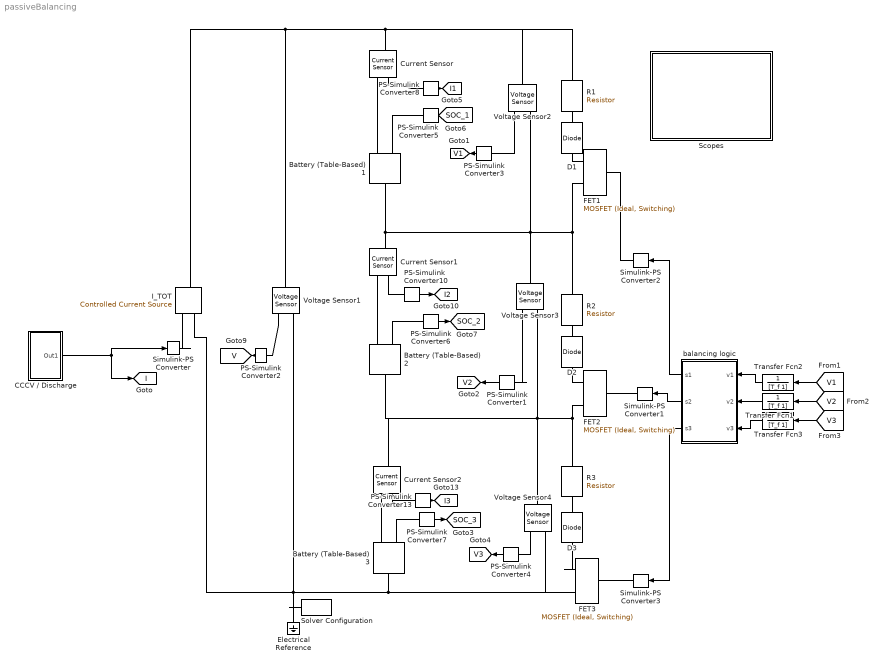
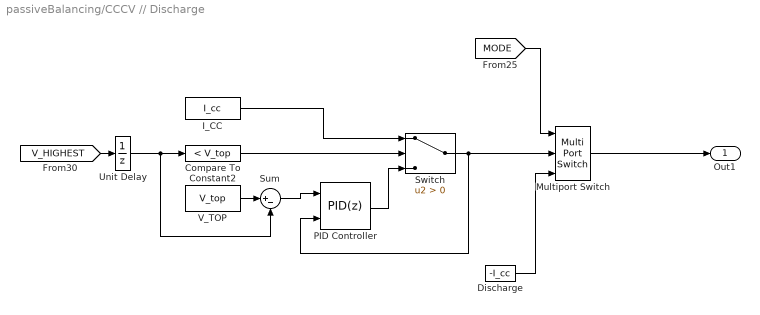
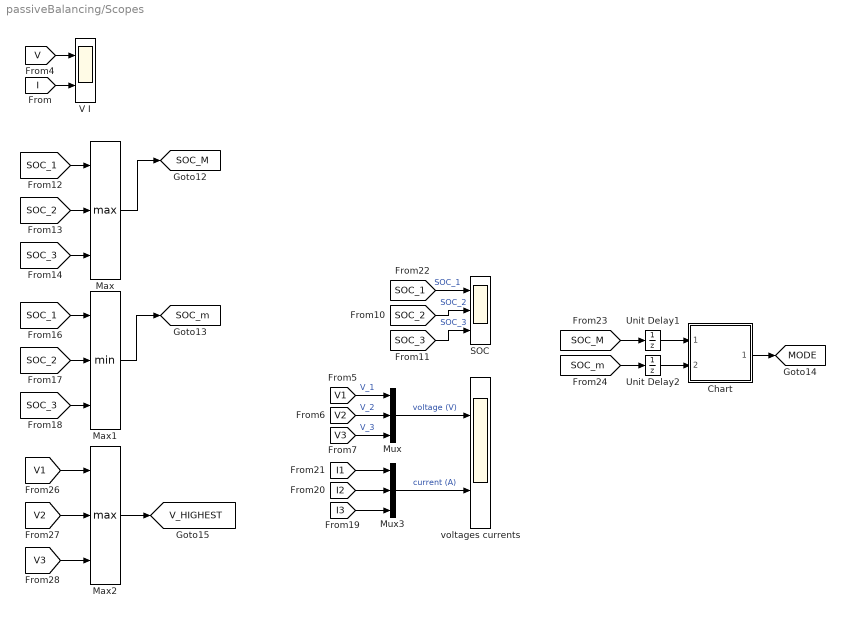
== stateflow chart passiveBalancing/balancing
logic ==
  state finish
    entry: s1 = 0;
    s2 = 0;
    s3 = 0;
  state init
    entry: s1 = 0;
    s2 = 0;
    s3 = 0;
  state balancing
    during: lowest = lowestCell(v1,v2,v3);
    state cell3_low
      entry: s1 = 1;
      s2 = 1;
      s3 = 0;
      exit: s1 = 0;
      s2 = 0;
      s3 = 0;
    state cell2_low
      entry: s1 = 1;
      s3 = 1;
      s2 = 0;
      exit: s1 = 0;
      s3 = 0;
      s2 = 0;
    state cell1_low
      entry: s2 = 1;
      s3 = 1;
      s1 = 0;
      exit: s1 = 0;
      s3 = 0;
      s2 = 0;
    (default) -> (junction 382) : {lowest = lowestCell(v1,v2,v3);}
    (junction 382) -> cell3_low [order 1] : [lowest==3]
    (junction 382) -> cell1_low [order 2] : [lowest==1]
    (junction 382) -> cell2_low [order 3] : [lowest==2]
    cell2_low -> cell1_low [order 2] : [lowest==1]
    cell3_low -> cell2_low [order 1] : [lowest==2]
    cell2_low -> cell3_low [order 1] : [lowest==3]
    cell1_low -> cell2_low [order 1] : [lowest==2]
    cell3_low -> cell1_low [order 2] : [lowest==1]
    cell1_low -> cell3_low [order 2] : [lowest==3]
  (default) -> init
  finish -> balancing : [abs(max([v1 v2 v3]) - min([v1 v2 v3])) > dV && after(1,sec)]
  balancing -> finish : [abs(max([v1 v2 v3]) - min([v1 v2 v3])) < dV]
  init -> balancing : [abs(max([v1 v2 v3]) - min([v1 v2 v3])) > dV]
  data: a function_input; b function_input; c function_input; lowidx function_output; v1 input; v2 input; v3 input; s1 output; s2 output; s3 output; dV parameter; lowest local
  function lowidx = lowestCell(a,b,c):
    | function lowidx = lowestCell(a,b,c)
    | [~,k] = sort([a,b,c],'ascend');
    | lowidx = k(1);

== stateflow chart passiveBalancing/Scopes/Chart ==
  state wait
  state DISCHARGE
    during: MODE = 2;
  state CHARGE
    during: MODE = 1;
  (default) -> wait
  wait -> (junction 14)
  (junction 14) -> (junction 16) [order 1] : [SOC_MAX<0.5]
  (junction 14) -> DISCHARGE [order 2] : [SOC_MAX>=0.5]
  (junction 16) -> (junction 19)
  CHARGE -> DISCHARGE : [SOC_MAX > 0.99 || after(5000,sec)]
  DISCHARGE -> CHARGE : [SOC_min < 0.3]
  (junction 19) -> CHARGE
  data: MODE output; SOC_MAX input; SOC_min input

/*
 * Academic License - for use in teaching, academic research, and meeting
 * course requirements at degree granting institutions only.  Not for
 * government, commercial, or other organizational use.
 *
 * File: passiveBalancing.c
 *
 * Code generated for Simulink model 'passiveBalancing'.
 *
 * Model version                  : 3.19
 * Simulink Coder version         : 9.4 (R2020b) 29-Jul-2020
 * C/C++ source code generated on : Mon Jan  4 22:03:15 2021
 *
 * Target selection: ert.tlc
 * Embedded hardware selection: ARM Compatible->ARM Cortex-M
 * Emulation hardware selection:
 *    Differs from embedded hardware (MATLAB Host)
 * Code generation objectives: Unspecified
 * Validation result: Not run
 */

#include "passiveBalancing.h"
#include "passiveBalancing_private.h"

/* Named constants for Chart: '<S12>/Chart' */
#define passiveBalan_IN_NO_ACTIVE_CHILD ((uint8_T)0U)
#define passiveBalancing_IN_CHARGE     ((uint8_T)1U)
#define passiveBalancing_IN_DISCHARGE  ((uint8_T)2U)
#define passiveBalancing_IN_wait       ((uint8_T)3U)

/* Named constants for Chart: '<Root>/balancing logic' */
#define passiveBalancing_IN_balancing  ((uint8_T)1U)
#define passiveBalancing_IN_cell1_low  ((uint8_T)1U)
#define passiveBalancing_IN_cell2_low  ((uint8_T)2U)
#define passiveBalancing_IN_cell3_low  ((uint8_T)3U)
#define passiveBalancing_IN_finish     ((uint8_T)2U)
#define passiveBalancing_IN_init       ((uint8_T)3U)

/* Block signals (default storage) */
B_passiveBalancing_T passiveBalancing_B;

/* Continuous states */
X_passiveBalancing_T passiveBalancing_X;

/* Block states (default storage) */
DW_passiveBalancing_T passiveBalancing_DW;

/* Real-time model */
static RT_MODEL_passiveBalancing_T passiveBalancing_M_;
RT_MODEL_passiveBalancing_T *const passiveBalancing_M = &passiveBalancing_M_;

/* Forward declaration for local functions */
static real_T passiveBalancing_maximum(const real_T x[3]);
static real_T passiveBalancing_minimum(const real_T x[3]);
static void passiveBalancing_sort(real_T x[3], int32_T idx[3]);
static real_T passiveBalancing_lowestCell(real_T a, real_T b, real_T c);
static void passiv_enter_internal_balancing(const real_T *TransferFcn3, const
  real_T *TransferFcn1, const real_T *TransferFcn2);

/*
 * This function updates continuous states using the ODE3 fixed-step
 * solver algorithm
 */
static void rt_ertODEUpdateContinuousStates(RTWSolverInfo *si )
{
  /* Solver Matrices */
  static const real_T rt_ODE3_A[3] = {
    1.0/2.0, 3.0/4.0, 1.0
  };

  static const real_T rt_ODE3_B[3][3] = {
    { 1.0/2.0, 0.0, 0.0 },

    { 0.0, 3.0/4.0, 0.0 },

    { 2.0/9.0, 1.0/3.0, 4.0/9.0 }
  };

  time_T t = rtsiGetT(si);
  time_T tnew = rtsiGetSolverStopTime(si);
  time_T h = rtsiGetStepSize(si);
  real_T *x = rtsiGetContStates(si);
  ODE3_IntgData *id = (ODE3_IntgData *)rtsiGetSolverData(si);
  real_T *y = id->y;
  real_T *f0 = id->f[0];
  real_T *f1 = id->f[1];
  real_T *f2 = id->f[2];
  real_T hB[3];
  int_T i;
  int_T nXc = 3;
  rtsiSetSimTimeStep(si,MINOR_TIME_STEP);

  /* Save the state values at time t in y, we'll use x as ynew. */
  (void) memcpy(y, x,
                (uint_T)nXc*sizeof(real_T));

  /* Assumes that rtsiSetT and ModelOutputs are up-to-date */
  /* f0 = f(t,y) */
  rtsiSetdX(si, f0);
  passiveBalancing_derivatives();

  /* f(:,2) = feval(odefile, t + hA(1), y + f*hB(:,1), args(:)(*)); */
  hB[0] = h * rt_ODE3_B[0][0];
  for (i = 0; i < nXc; i++) {
    x[i] = y[i] + (f0[i]*hB[0]);
  }

  rtsiSetT(si, t + h*rt_ODE3_A[0]);
  rtsiSetdX(si, f1);
  passiveBalancing_step();
  passiveBalancing_derivatives();

  /* f(:,3) = feval(odefile, t + hA(2), y + f*hB(:,2), args(:)(*)); */
  for (i = 0; i <= 1; i++) {
    hB[i] = h * rt_ODE3_B[1][i];
  }

  for (i = 0; i < nXc; i++) {
    x[i] = y[i] + (f0[i]*hB[0] + f1[i]*hB[1]);
  }

  rtsiSetT(si, t + h*rt_ODE3_A[1]);
  rtsiSetdX(si, f2);
  passiveBalancing_step();
  passiveBalancing_derivatives();

  /* tnew = t + hA(3);
     ynew = y + f*hB(:,3); */
  for (i = 0; i <= 2; i++) {
    hB[i] = h * rt_ODE3_B[2][i];
  }

  for (i = 0; i < nXc; i++) {
    x[i] = y[i] + (f0[i]*hB[0] + f1[i]*hB[1] + f2[i]*hB[2]);
  }

  rtsiSetT(si, tnew);
  rtsiSetSimTimeStep(si,MAJOR_TIME_STEP);
}

/* Function for Chart: '<Root>/balancing logic' */
static real_T passiveBalancing_maximum(const real_T x[3])
{
  real_T ex;
  int32_T idx;
  int32_T k;
  boolean_T exitg1;
  if (!rtIsNaN(x[0])) {
    idx = 1;
  } else {
    idx = 0;
    k = 2;
    exitg1 = false;
    while ((!exitg1) && (k < 4)) {
      if (!rtIsNaN(x[k - 1])) {
        idx = k;
        exitg1 = true;
      } else {
        k++;
      }
    }
  }

  if (idx == 0) {
    ex = x[0];
  } else {
    ex = x[idx - 1];
    while (idx + 1 <= 3) {
      if (ex < x[idx]) {
        ex = x[idx];
      }

      idx++;
    }
  }

  return ex;
}

/* Function for Chart: '<Root>/balancing logic' */
static real_T passiveBalancing_minimum(const real_T x[3])
{
  real_T ex;
  int32_T idx;
  int32_T k;
  boolean_T exitg1;
  if (!rtIsNaN(x[0])) {
    idx = 1;
  } else {
    idx = 0;
    k = 2;
    exitg1 = false;
    while ((!exitg1) && (k < 4)) {
      if (!rtIsNaN(x[k - 1])) {
        idx = k;
        exitg1 = true;
      } else {
        k++;
      }
    }
  }

  if (idx == 0) {
    ex = x[0];
  } else {
    ex = x[idx - 1];
    while (idx + 1 <= 3) {
      if (ex > x[idx]) {
        ex = x[idx];
      }

      idx++;
    }
  }

  return ex;
}

/* Function for Chart: '<Root>/balancing logic' */
static void passiveBalancing_sort(real_T x[3], int32_T idx[3])
{
  real_T b_x_idx_0;
  real_T b_x_idx_1;
  real_T b_x_idx_2;
  b_x_idx_0 = x[0];
  b_x_idx_1 = x[1];
  b_x_idx_2 = x[2];
  if ((x[0] <= x[1]) || rtIsNaN(x[1])) {
    if ((x[1] <= x[2]) || rtIsNaN(x[2])) {
      idx[0] = 1;
      idx[1] = 2;
      idx[2] = 3;
    } else if (x[0] <= x[2]) {
      idx[0] = 1;
      idx[1] = 3;
      idx[2] = 2;
      b_x_idx_1 = x[2];
      b_x_idx_2 = x[1];
    } else {
      idx[0] = 3;
      idx[1] = 1;
      idx[2] = 2;
      b_x_idx_2 = x[1];
      b_x_idx_1 = x[0];
      b_x_idx_0 = x[2];
    }
  } else if ((x[0] <= x[2]) || rtIsNaN(x[2])) {
    idx[0] = 2;
    idx[1] = 1;
    idx[2] = 3;
    b_x_idx_0 = x[1];
    b_x_idx_1 = x[0];
  } else if (x[1] <= x[2]) {
    idx[0] = 2;
    idx[1] = 3;
    idx[2] = 1;
    b_x_idx_0 = x[1];
    b_x_idx_1 = x[2];
    b_x_idx_2 = x[0];
  } else {
    idx[0] = 3;
    idx[1] = 2;
    idx[2] = 1;
    b_x_idx_0 = x[2];
    b_x_idx_2 = x[0];
  }

  x[0] = b_x_idx_0;
  x[1] = b_x_idx_1;
  x[2] = b_x_idx_2;
}

/* Function for Chart: '<Root>/balancing logic' */
static real_T passiveBalancing_lowestCell(real_T a, real_T b, real_T c)
{
  real_T x[3];
  int32_T iidx[3];
  x[0] = a;
  x[1] = b;
  x[2] = c;
  passiveBalancing_sort(x, iidx);
  return iidx[0];
}

/* Function for Chart: '<Root>/balancing logic' */
static void passiv_enter_internal_balancing(const real_T *TransferFcn3, const
  real_T *TransferFcn1, const real_T *TransferFcn2)
{
  real_T lowest;
  lowest = passiveBalancing_lowestCell(*TransferFcn2, *TransferFcn1,
    *TransferFcn3);
  if (lowest == 3.0) {
    passiveBalancing_DW.is_balancing = passiveBalancing_IN_cell3_low;
    passiveBalancing_B.s1 = 1.0;
    passiveBalancing_B.s2 = 1.0;
    passiveBalancing_B.s3 = 0.0;
  } else if (lowest == 1.0) {
    passiveBalancing_DW.is_balancing = passiveBalancing_IN_cell1_low;
    passiveBalancing_B.s2 = 1.0;
    passiveBalancing_B.s3 = 1.0;
    passiveBalancing_B.s1 = 0.0;
  } else {
    if (lowest == 2.0) {
      passiveBalancing_DW.is_balancing = passiveBalancing_IN_cell2_low;
      passiveBalancing_B.s1 = 1.0;
      passiveBalancing_B.s3 = 1.0;
      passiveBalancing_B.s2 = 0.0;
    }
  }
}

/* Model step function */
void passiveBalancing_step(void)
{
  /* local block i/o variables */
  real_T rtb_FilterCoefficient;
  real_T rtb_Switch_m;
  if (rtmIsMajorTimeStep(passiveBalancing_M)) {
    /* set solver stop time */
    rtsiSetSolverStopTime(&passiveBalancing_M->solverInfo,
                          ((passiveBalancing_M->Timing.clockTick0+1)*
      passiveBalancing_M->Timing.stepSize0));
  }                                    /* end MajorTimeStep */

  /* Update absolute time of base rate at minor time step */
  if (rtmIsMinorTimeStep(passiveBalancing_M)) {
    passiveBalancing_M->Timing.t[0] = rtsiGetT(&passiveBalancing_M->solverInfo);
  }

  {
    NeslSimulationData *simulationData;
    NeuDiagnosticManager *diagnosticManager;
    NeuDiagnosticTree *diagnosticTree;
    char *msg;
    real_T tmp_3[124];
    real_T tmp_5[124];
    real_T tmp_0[16];
    real_T TransferFcn2_0[3];
    real_T TransferFcn2_1[3];
    real_T rtb_OUTPUT_1_1[3];
    real_T TransferFcn1;
    real_T TransferFcn2;
    real_T TransferFcn3;
    real_T rtb_DeadZone;
    real_T rtb_Sum;
    real_T rtb_SumI1;
    real_T rtb_Switch;
    real_T time;
    real_T time_0;
    real_T time_1;
    int32_T tmp_2;
    int_T tmp_4[6];
    int_T tmp_6[6];
    int_T tmp_1[5];
    boolean_T tmp;

    /* TransferFcn: '<Root>/Transfer Fcn1' */
    TransferFcn1 = 0.0016666666666666668 *
      passiveBalancing_X.TransferFcn1_CSTATE;

    /* TransferFcn: '<Root>/Transfer Fcn2' */
    TransferFcn2 = 0.0016666666666666668 *
      passiveBalancing_X.TransferFcn2_CSTATE;

    /* TransferFcn: '<Root>/Transfer Fcn3' */
    TransferFcn3 = 0.0016666666666666668 *
      passiveBalancing_X.TransferFcn3_CSTATE;
    if (rtmIsMajorTimeStep(passiveBalancing_M)) {
      /* Chart: '<S12>/Chart' incorporates:
       *  UnitDelay: '<S12>/Unit Delay1'
       *  UnitDelay: '<S12>/Unit Delay2'
       */
      if (passiveBalancing_DW.temporalCounter_i1 < 8191U) {
        passiveBalancing_DW.temporalCounter_i1++;
      }

      if (passiveBalancing_DW.is_active_c3_passiveBalancing == 0U) {
        passiveBalancing_DW.is_active_c3_passiveBalancing = 1U;
        passiveBalancing_DW.is_c3_passiveBalancing = passiveBalancing_IN_wait;
      } else {
        switch (passiveBalancing_DW.is_c3_passiveBalancing) {
         case passiveBalancing_IN_CHARGE:
          if ((passiveBalancing_DW.UnitDelay1_DSTATE > 0.99) ||
              (passiveBalancing_DW.temporalCounter_i1 >= 5000U)) {
            passiveBalancing_DW.is_c3_passiveBalancing =
              passiveBalancing_IN_DISCHARGE;
          } else {
            passiveBalancing_B.MODE = 1.0;
          }
          break;

         case passiveBalancing_IN_DISCHARGE:
          if (passiveBalancing_DW.UnitDelay2_DSTATE < 0.3) {
            passiveBalancing_DW.is_c3_passiveBalancing =
              passiveBalancing_IN_CHARGE;
            passiveBalancing_DW.temporalCounter_i1 = 0U;
          } else {
            passiveBalancing_B.MODE = 2.0;
          }
          break;

         default:
          /* case IN_wait: */
          if (passiveBalancing_DW.UnitDelay1_DSTATE < 0.5) {
            passiveBalancing_DW.is_c3_passiveBalancing =
              passiveBalancing_IN_CHARGE;
            passiveBalancing_DW.temporalCounter_i1 = 0U;
          } else {
            if (passiveBalancing_DW.UnitDelay1_DSTATE >= 0.5) {
              passiveBalancing_DW.is_c3_passiveBalancing =
                passiveBalancing_IN_DISCHARGE;
            }
          }
          break;
        }
      }

      /* End of Chart: '<S12>/Chart' */

      /* Sum: '<S1>/Sum' incorporates:
       *  Constant: '<S1>/V_TOP'
       *  UnitDelay: '<S1>/Unit Delay'
       */
      rtb_DeadZone = 4.1 - passiveBalancing_DW.UnitDelay_DSTATE;

      /* Gain: '<S57>/Filter Coefficient' incorporates:
       *  Constant: '<S1>/V_TOP'
       *  DiscreteIntegrator: '<S49>/Filter'
       *  Gain: '<S48>/Derivative Gain'
       *  Sum: '<S1>/Sum'
       *  Sum: '<S49>/SumD'
       *  UnitDelay: '<S1>/Unit Delay'
       */
      rtb_FilterCoefficient = ((4.1 - passiveBalancing_DW.UnitDelay_DSTATE) *
        0.0 - passiveBalancing_DW.Filter_DSTATE) * 100.0;

      /* Sum: '<S63>/Sum' incorporates:
       *  Constant: '<S1>/V_TOP'
       *  DiscreteIntegrator: '<S54>/Integrator'
       *  Gain: '<S59>/Proportional Gain'
       *  Sum: '<S1>/Sum'
       *  UnitDelay: '<S1>/Unit Delay'
       */
      rtb_Sum = ((4.1 - passiveBalancing_DW.UnitDelay_DSTATE) * 100.0 +
                 passiveBalancing_DW.Integrator_DSTATE) + rtb_FilterCoefficient;

      /* Saturate: '<S61>/Saturation' */
      if (rtb_Sum <= 0.0) {
        rtb_SumI1 = 0.0;
      } else {
        rtb_SumI1 = rtb_Sum;
      }

      /* End of Saturate: '<S61>/Saturation' */

      /* Switch: '<S1>/Switch' incorporates:
       *  Constant: '<S19>/Constant'
       *  Constant: '<S1>/I_CC'
       *  RelationalOperator: '<S19>/Compare'
       *  UnitDelay: '<S1>/Unit Delay'
       */
      if (passiveBalancing_DW.UnitDelay_DSTATE < 4.1) {
        rtb_Switch = 4.0;
      } else {
        rtb_Switch = rtb_SumI1;
      }

      /* End of Switch: '<S1>/Switch' */

      /* SimscapeInputBlock: '<S86>/INPUT_1_1_1' */
      if (rtmIsMajorTimeStep(passiveBalancing_M)) {
        /* MultiPortSwitch: '<S1>/Multiport Switch' incorporates:
         *  Constant: '<S1>/Discharge'
         */
        if ((int32_T)passiveBalancing_B.MODE == 1) {
          passiveBalancing_B.INPUT_1_1_1[0] = rtb_Switch;
        } else {
          passiveBalancing_B.INPUT_1_1_1[0] = -4.0;
        }

        /* End of MultiPortSwitch: '<S1>/Multiport Switch' */
        passiveBalancing_B.INPUT_1_1_1[1] = 0.0;
        passiveBalancing_B.INPUT_1_1_1[2] = 0.0;
        passiveBalancing_DW.INPUT_1_1_1_Discrete[0] =
          !(passiveBalancing_B.INPUT_1_1_1[0] ==
            passiveBalancing_DW.INPUT_1_1_1_Discrete[1]);
        passiveBalancing_DW.INPUT_1_1_1_Discrete[1] =
          passiveBalancing_B.INPUT_1_1_1[0];
        passiveBalancing_B.INPUT_1_1_1[0] =
          passiveBalancing_DW.INPUT_1_1_1_Discrete[1];
        passiveBalancing_B.INPUT_1_1_1[3] =
          passiveBalancing_DW.INPUT_1_1_1_Discrete[0];
      }

      /* End of SimscapeInputBlock: '<S86>/INPUT_1_1_1' */

      /* Chart: '<Root>/balancing logic' */
      if (passiveBalancing_DW.temporalCounter_i1_p < 1U) {
        passiveBalancing_DW.temporalCounter_i1_p++;
      }

      if (passiveBalancing_DW.is_active_c1_passiveBalancing == 0U) {
        passiveBalancing_DW.is_active_c1_passiveBalancing = 1U;
        passiveBalancing_DW.is_c1_passiveBalancing = passiveBalancing_IN_init;
        passiveBalancing_B.s1 = 0.0;
        passiveBalancing_B.s2 = 0.0;
        passiveBalancing_B.s3 = 0.0;
      } else {
        switch (passiveBalancing_DW.is_c1_passiveBalancing) {
         case passiveBalancing_IN_balancing:
          TransferFcn2_0[0] = TransferFcn2;
          TransferFcn2_0[1] = TransferFcn1;
          TransferFcn2_0[2] = TransferFcn3;
          TransferFcn2_1[0] = TransferFcn2;
          TransferFcn2_1[1] = TransferFcn1;
          TransferFcn2_1[2] = TransferFcn3;
          if (fabs(passiveBalancing_maximum(TransferFcn2_0) -
                   passiveBalancing_minimum(TransferFcn2_1)) < 0.01) {
            switch (passiveBalancing_DW.is_balancing) {
             case passiveBalancing_IN_cell1_low:
              passiveBalancing_B.s1 = 0.0;
              passiveBalancing_B.s3 = 0.0;
              passiveBalancing_B.s2 = 0.0;
              passiveBalancing_DW.is_balancing = passiveBalan_IN_NO_ACTIVE_CHILD;
              break;

             case passiveBalancing_IN_cell2_low:
              passiveBalancing_B.s1 = 0.0;
              passiveBalancing_B.s3 = 0.0;
              passiveBalancing_B.s2 = 0.0;
              passiveBalancing_DW.is_balancing = passiveBalan_IN_NO_ACTIVE_CHILD;
              break;

             case passiveBalancing_IN_cell3_low:
              passiveBalancing_B.s1 = 0.0;
              passiveBalancing_B.s2 = 0.0;
              passiveBalancing_B.s3 = 0.0;
              passiveBalancing_DW.is_balancing = passiveBalan_IN_NO_ACTIVE_CHILD;
              break;
            }

            passiveBalancing_DW.is_c1_passiveBalancing =
              passiveBalancing_IN_finish;
            passiveBalancing_DW.temporalCounter_i1_p = 0U;
            passiveBalancing_B.s1 = 0.0;
            passiveBalancing_B.s2 = 0.0;
            passiveBalancing_B.s3 = 0.0;
          } else {
            TransferFcn1 = passiveBalancing_lowestCell(TransferFcn2,
              TransferFcn1, TransferFcn3);
            switch (passiveBalancing_DW.is_balancing) {
             case passiveBalancing_IN_cell1_low:
              if (TransferFcn1 == 2.0) {
                passiveBalancing_DW.is_balancing = passiveBalancing_IN_cell2_low;
                passiveBalancing_B.s1 = 1.0;
                passiveBalancing_B.s3 = 1.0;
                passiveBalancing_B.s2 = 0.0;
              } else {
                if (TransferFcn1 == 3.0) {
                  passiveBalancing_DW.is_balancing =
                    passiveBalancing_IN_cell3_low;
                  passiveBalancing_B.s1 = 1.0;
                  passiveBalancing_B.s2 = 1.0;
                  passiveBalancing_B.s3 = 0.0;
                }
              }
              break;

             case passiveBalancing_IN_cell2_low:
              if (TransferFcn1 == 3.0) {
                passiveBalancing_DW.is_balancing = passiveBalancing_IN_cell3_low;
                passiveBalancing_B.s1 = 1.0;
                passiveBalancing_B.s2 = 1.0;
                passiveBalancing_B.s3 = 0.0;
              } else {
                if (TransferFcn1 == 1.0) {
                  passiveBalancing_DW.is_balancing =
                    passiveBalancing_IN_cell1_low;
                  passiveBalancing_B.s2 = 1.0;
                  passiveBalancing_B.s3 = 1.0;
                  passiveBalancing_B.s1 = 0.0;
                }
              }
              break;

             default:
              /* case IN_cell3_low: */
              if (TransferFcn1 == 2.0) {
                passiveBalancing_DW.is_balancing = passiveBalancing_IN_cell2_low;
                passiveBalancing_B.s1 = 1.0;
                passiveBalancing_B.s3 = 1.0;
                passiveBalancing_B.s2 = 0.0;
              } else {
                if (TransferFcn1 == 1.0) {
                  passiveBalancing_DW.is_balancing =
                    passiveBalancing_IN_cell1_low;
                  passiveBalancing_B.s2 = 1.0;
                  passiveBalancing_B.s3 = 1.0;
                  passiveBalancing_B.s1 = 0.0;
                }
              }
              break;
            }
          }
          break;

         case passiveBalancing_IN_finish:
          TransferFcn2_0[0] = TransferFcn2;
          TransferFcn2_0[1] = TransferFcn1;
          TransferFcn2_0[2] = TransferFcn3;
          TransferFcn2_1[0] = TransferFcn2;
          TransferFcn2_1[1] = TransferFcn1;
          TransferFcn2_1[2] = TransferFcn3;
          if ((fabs(passiveBalancing_maximum(TransferFcn2_0) -
                    passiveBalancing_minimum(TransferFcn2_1)) > 0.01) &&
              (passiveBalancing_DW.temporalCounter_i1_p >= 1U)) {
            passiveBalancing_DW.is_c1_passiveBalancing =
              passiveBalancing_IN_balancing;
            passiv_enter_internal_balancing(&TransferFcn3, &TransferFcn1,
              &TransferFcn2);
          }
          break;

         default:
          /* case IN_init: */
          TransferFcn2_0[0] = TransferFcn2;
          TransferFcn2_0[1] = TransferFcn1;
          TransferFcn2_0[2] = TransferFcn3;
          TransferFcn2_1[0] = TransferFcn2;
          TransferFcn2_1[1] = TransferFcn1;
          TransferFcn2_1[2] = TransferFcn3;
          if (fabs(passiveBalancing_maximum(TransferFcn2_0) -
                   passiveBalancing_minimum(TransferFcn2_1)) > 0.01) {
            passiveBalancing_DW.is_c1_passiveBalancing =
              passiveBalancing_IN_balancing;
            passiv_enter_internal_balancing(&TransferFcn3, &TransferFcn1,
              &TransferFcn2);
          }
          break;
        }
      }

      /* End of Chart: '<Root>/balancing logic' */

      /* SimscapeInputBlock: '<S86>/INPUT_3_1_1' */
      if (rtmIsMajorTimeStep(passiveBalancing_M)) {
        passiveBalancing_B.INPUT_3_1_1[0] = passiveBalancing_B.s1;
        passiveBalancing_B.INPUT_3_1_1[1] = 0.0;
        passiveBalancing_B.INPUT_3_1_1[2] = 0.0;
        passiveBalancing_DW.INPUT_3_1_1_Discrete[0] =
          !(passiveBalancing_B.INPUT_3_1_1[0] ==
            passiveBalancing_DW.INPUT_3_1_1_Discrete[1]);
        passiveBalancing_DW.INPUT_3_1_1_Discrete[1] =
          passiveBalancing_B.INPUT_3_1_1[0];
        passiveBalancing_B.INPUT_3_1_1[0] =
          passiveBalancing_DW.INPUT_3_1_1_Discrete[1];
        passiveBalancing_B.INPUT_3_1_1[3] =
          passiveBalancing_DW.INPUT_3_1_1_Discrete[0];

        /* SimscapeInputBlock: '<S86>/INPUT_2_1_1' */
        passiveBalancing_B.INPUT_2_1_1[0] = passiveBalancing_B.s2;
        passiveBalancing_B.INPUT_2_1_1[1] = 0.0;
        passiveBalancing_B.INPUT_2_1_1[2] = 0.0;
        passiveBalancing_DW.INPUT_2_1_1_Discrete[0] =
          !(passiveBalancing_B.INPUT_2_1_1[0] ==
            passiveBalancing_DW.INPUT_2_1_1_Discrete[1]);
        passiveBalancing_DW.INPUT_2_1_1_Discrete[1] =
          passiveBalancing_B.INPUT_2_1_1[0];
        passiveBalancing_B.INPUT_2_1_1[0] =
          passiveBalancing_DW.INPUT_2_1_1_Discrete[1];
        passiveBalancing_B.INPUT_2_1_1[3] =
          passiveBalancing_DW.INPUT_2_1_1_Discrete[0];

        /* SimscapeInputBlock: '<S86>/INPUT_4_1_1' */
        passiveBalancing_B.INPUT_4_1_1[0] = passiveBalancing_B.s3;
        passiveBalancing_B.INPUT_4_1_1[1] = 0.0;
        passiveBalancing_B.INPUT_4_1_1[2] = 0.0;
        passiveBalancing_DW.INPUT_4_1_1_Discrete[0] =
          !(passiveBalancing_B.INPUT_4_1_1[0] ==
            passiveBalancing_DW.INPUT_4_1_1_Discrete[1]);
        passiveBalancing_DW.INPUT_4_1_1_Discrete[1] =
          passiveBalancing_B.INPUT_4_1_1[0];
        passiveBalancing_B.INPUT_4_1_1[0] =
          passiveBalancing_DW.INPUT_4_1_1_Discrete[1];
        passiveBalancing_B.INPUT_4_1_1[3] =
          passiveBalancing_DW.INPUT_4_1_1_Discrete[0];
      }

      /* End of SimscapeInputBlock: '<S86>/INPUT_3_1_1' */

      /* SimscapeExecutionBlock: '<S86>/STATE_1' incorporates:
       *  SimscapeExecutionBlock: '<S86>/OUTPUT_1_0'
       *  SimscapeExecutionBlock: '<S86>/OUTPUT_1_1'
       */
      simulationData = (NeslSimulationData *)passiveBalancing_DW.STATE_1_SimData;
      TransferFcn1 = passiveBalancing_M->Timing.t[0];
      time = TransferFcn1;
      simulationData->mData->mTime.mN = 1;
      simulationData->mData->mTime.mX = &time;
      simulationData->mData->mContStates.mN = 0;
      simulationData->mData->mContStates.mX = NULL;
      simulationData->mData->mDiscStates.mN = 66;
      simulationData->mData->mDiscStates.mX =
        &passiveBalancing_DW.STATE_1_Discrete[0];
      simulationData->mData->mModeVector.mN = 42;
      simulationData->mData->mModeVector.mX =
        &passiveBalancing_DW.STATE_1_Modes[0];
      tmp = false;
      simulationData->mData->mFoundZcEvents = tmp;
      simulationData->mData->mIsMajorTimeStep = true;
      tmp = false;
      simulationData->mData->mIsSolverAssertCheck = tmp;
      simulationData->mData->mIsSolverCheckingCIC = false;
      simulationData->mData->mIsComputingJacobian = false;
      simulationData->mData->mIsEvaluatingF0 = false;
      simulationData->mData->mIsSolverRequestingReset = false;
      tmp_1[0] = 0;
      tmp_0[0] = passiveBalancing_B.INPUT_1_1_1[0];
      tmp_0[1] = passiveBalancing_B.INPUT_1_1_1[1];
      tmp_0[2] = passiveBalancing_B.INPUT_1_1_1[2];
      tmp_0[3] = passiveBalancing_B.INPUT_1_1_1[3];
      tmp_1[1] = 4;
      tmp_0[4] = passiveBalancing_B.INPUT_3_1_1[0];
      tmp_0[5] = passiveBalancing_B.INPUT_3_1_1[1];
      tmp_0[6] = passiveBalancing_B.INPUT_3_1_1[2];
      tmp_0[7] = passiveBalancing_B.INPUT_3_1_1[3];
      tmp_1[2] = 8;
      tmp_0[8] = passiveBalancing_B.INPUT_2_1_1[0];
      tmp_0[9] = passiveBalancing_B.INPUT_2_1_1[1];
      tmp_0[10] = passiveBalancing_B.INPUT_2_1_1[2];
      tmp_0[11] = passiveBalancing_B.INPUT_2_1_1[3];
      tmp_1[3] = 12;
      tmp_0[12] = passiveBalancing_B.INPUT_4_1_1[0];
      tmp_0[13] = passiveBalancing_B.INPUT_4_1_1[1];
      tmp_0[14] = passiveBalancing_B.INPUT_4_1_1[2];
      tmp_0[15] = passiveBalancing_B.INPUT_4_1_1[3];
      tmp_1[4] = 16;
      simulationData->mData->mInputValues.mN = 16;
      simulationData->mData->mInputValues.mX = &tmp_0[0];
      simulationData->mData->mInputOffsets.mN = 5;
      simulationData->mData->mInputOffsets.mX = &tmp_1[0];
      simulationData->mData->mOutputs.mN = 108;
      simulationData->mData->mOutputs.mX = &passiveBalancing_B.STATE_1[0];
      simulationData->mData->mSampleHits.mN = 0;
      simulationData->mData->mSampleHits.mX = NULL;
      tmp = rtmIsMajorTimeStep(passiveBalancing_M);
      simulationData->mData->mIsFundamentalSampleHit = tmp;
      simulationData->mData->mTolerances.mN = 0;
      simulationData->mData->mTolerances.mX = NULL;
      simulationData->mData->mCstateHasChanged = false;
      diagnosticManager = (NeuDiagnosticManager *)
        passiveBalancing_DW.STATE_1_DiagMgr;
      diagnosticTree = neu_diagnostic_manager_get_initial_tree(diagnosticManager);
      tmp_2 = ne_simulator_method((NeslSimulator *)
        passiveBalancing_DW.STATE_1_Simulator, NESL_SIM_OUTPUTS, simulationData,
        diagnosticManager);
      if (tmp_2 != 0) {
        tmp = error_buffer_is_empty(rtmGetErrorStatus(passiveBalancing_M));
        if (tmp) {
          msg = rtw_diagnostics_msg(diagnosticTree);
          rtmSetErrorStatus(passiveBalancing_M, msg);
        }
      }

      /* End of SimscapeExecutionBlock: '<S86>/STATE_1' */

      /* SimscapeExecutionBlock: '<S86>/OUTPUT_1_0' */
      simulationData = (NeslSimulationData *)
        passiveBalancing_DW.OUTPUT_1_0_SimData;
      time_0 = TransferFcn1;
      simulationData->mData->mTime.mN = 1;
      simulationData->mData->mTime.mX = &time_0;
      simulationData->mData->mContStates.mN = 0;
      simulationData->mData->mContStates.mX = NULL;
      simulationData->mData->mDiscStates.mN = 0;
      simulationData->mData->mDiscStates.mX =
        &passiveBalancing_DW.OUTPUT_1_0_Discrete;
      simulationData->mData->mModeVector.mN = 0;
      simulationData->mData->mModeVector.mX =
        &passiveBalancing_DW.OUTPUT_1_0_Modes;
      tmp = false;
      simulationData->mData->mFoundZcEvents = tmp;
      simulationData->mData->mIsMajorTimeStep = true;
      tmp = false;
      simulationData->mData->mIsSolverAssertCheck = tmp;
      simulationData->mData->mIsSolverCheckingCIC = false;
      simulationData->mData->mIsComputingJacobian = false;
      simulationData->mData->mIsEvaluatingF0 = false;
      simulationData->mData->mIsSolverRequestingReset = false;
      tmp_4[0] = 0;
      tmp_3[0] = passiveBalancing_B.INPUT_1_1_1[0];
      tmp_3[1] = passiveBalancing_B.INPUT_1_1_1[1];
      tmp_3[2] = passiveBalancing_B.INPUT_1_1_1[2];
      tmp_3[3] = passiveBalancing_B.INPUT_1_1_1[3];
      tmp_4[1] = 4;
      tmp_3[4] = passiveBalancing_B.INPUT_3_1_1[0];
      tmp_3[5] = passiveBalancing_B.INPUT_3_1_1[1];
      tmp_3[6] = passiveBalancing_B.INPUT_3_1_1[2];
      tmp_3[7] = passiveBalancing_B.INPUT_3_1_1[3];
      tmp_4[2] = 8;
      tmp_3[8] = passiveBalancing_B.INPUT_2_1_1[0];
      tmp_3[9] = passiveBalancing_B.INPUT_2_1_1[1];
      tmp_3[10] = passiveBalancing_B.INPUT_2_1_1[2];
      tmp_3[11] = passiveBalancing_B.INPUT_2_1_1[3];
      tmp_4[3] = 12;
      tmp_3[12] = passiveBalancing_B.INPUT_4_1_1[0];
      tmp_3[13] = passiveBalancing_B.INPUT_4_1_1[1];
      tmp_3[14] = passiveBalancing_B.INPUT_4_1_1[2];
      tmp_3[15] = passiveBalancing_B.INPUT_4_1_1[3];
      tmp_4[4] = 16;
      memcpy(&tmp_3[16], &passiveBalancing_B.STATE_1[0], 108U * sizeof(real_T));
      tmp_4[5] = 124;
      simulationData->mData->mInputValues.mN = 124;
      simulationData->mData->mInputValues.mX = &tmp_3[0];
      simulationData->mData->mInputOffsets.mN = 6;
      simulationData->mData->mInputOffsets.mX = &tmp_4[0];
      simulationData->mData->mOutputs.mN = 7;
      simulationData->mData->mOutputs.mX = &passiveBalancing_B.OUTPUT_1_0[0];
      simulationData->mData->mSampleHits.mN = 0;
      simulationData->mData->mSampleHits.mX = NULL;
      tmp = rtmIsMajorTimeStep(passiveBalancing_M);
      simulationData->mData->mIsFundamentalSampleHit = tmp;
      simulationData->mData->mTolerances.mN = 0;
      simulationData->mData->mTolerances.mX = NULL;
      simulationData->mData->mCstateHasChanged = false;
      diagnosticManager = (NeuDiagnosticManager *)
        passiveBalancing_DW.OUTPUT_1_0_DiagMgr;
      diagnosticTree = neu_diagnostic_manager_get_initial_tree(diagnosticManager);
      tmp_2 = ne_simulator_method((NeslSimulator *)
        passiveBalancing_DW.OUTPUT_1_0_Simulator, NESL_SIM_OUTPUTS,
        simulationData, diagnosticManager);
      if (tmp_2 != 0) {
        tmp = error_buffer_is_empty(rtmGetErrorStatus(passiveBalancing_M));
        if (tmp) {
          msg = rtw_diagnostics_msg(diagnosticTree);
          rtmSetErrorStatus(passiveBalancing_M, msg);
        }
      }

      /* SimscapeExecutionBlock: '<S86>/OUTPUT_1_1' */
      simulationData = (NeslSimulationData *)
        passiveBalancing_DW.OUTPUT_1_1_SimData;
      time_1 = TransferFcn1;
      simulationData->mData->mTime.mN = 1;
      simulationData->mData->mTime.mX = &time_1;
      simulationData->mData->mContStates.mN = 0;
      simulationData->mData->mContStates.mX = NULL;
      simulationData->mData->mDiscStates.mN = 0;
      simulationData->mData->mDiscStates.mX =
        &passiveBalancing_DW.OUTPUT_1_1_Discrete;
      simulationData->mData->mModeVector.mN = 0;
      simulationData->mData->mModeVector.mX =
        &passiveBalancing_DW.OUTPUT_1_1_Modes;
      tmp = false;
      simulationData->mData->mFoundZcEvents = tmp;
      simulationData->mData->mIsMajorTimeStep = true;
      tmp = false;
      simulationData->mData->mIsSolverAssertCheck = tmp;
      simulationData->mData->mIsSolverCheckingCIC = false;
      simulationData->mData->mIsComputingJacobian = false;
      simulationData->mData->mIsEvaluatingF0 = false;
      simulationData->mData->mIsSolverRequestingReset = false;
      tmp_6[0] = 0;
      tmp_5[0] = passiveBalancing_B.INPUT_1_1_1[0];
      tmp_5[1] = passiveBalancing_B.INPUT_1_1_1[1];
      tmp_5[2] = passiveBalancing_B.INPUT_1_1_1[2];
      tmp_5[3] = passiveBalancing_B.INPUT_1_1_1[3];
      tmp_6[1] = 4;
      tmp_5[4] = passiveBalancing_B.INPUT_3_1_1[0];
      tmp_5[5] = passiveBalancing_B.INPUT_3_1_1[1];
      tmp_5[6] = passiveBalancing_B.INPUT_3_1_1[2];
      tmp_5[7] = passiveBalancing_B.INPUT_3_1_1[3];
      tmp_6[2] = 8;
      tmp_5[8] = passiveBalancing_B.INPUT_2_1_1[0];
      tmp_5[9] = passiveBalancing_B.INPUT_2_1_1[1];
      tmp_5[10] = passiveBalancing_B.INPUT_2_1_1[2];
      tmp_5[11] = passiveBalancing_B.INPUT_2_1_1[3];
      tmp_6[3] = 12;
      tmp_5[12] = passiveBalancing_B.INPUT_4_1_1[0];
      tmp_5[13] = passiveBalancing_B.INPUT_4_1_1[1];
      tmp_5[14] = passiveBalancing_B.INPUT_4_1_1[2];
      tmp_5[15] = passiveBalancing_B.INPUT_4_1_1[3];
      tmp_6[4] = 16;
      memcpy(&tmp_5[16], &passiveBalancing_B.STATE_1[0], 108U * sizeof(real_T));
      tmp_6[5] = 124;
      simulationData->mData->mInputValues.mN = 124;
      simulationData->mData->mInputValues.mX = &tmp_5[0];
      simulationData->mData->mInputOffsets.mN = 6;
      simulationData->mData->mInputOffsets.mX = &tmp_6[0];
      simulationData->mData->mOutputs.mN = 3;
      simulationData->mData->mOutputs.mX = &rtb_OUTPUT_1_1[0];
      simulationData->mData->mSampleHits.mN = 0;
      simulationData->mData->mSampleHits.mX = NULL;
      tmp = rtmIsMajorTimeStep(passiveBalancing_M);
      simulationData->mData->mIsFundamentalSampleHit = tmp;
      simulationData->mData->mTolerances.mN = 0;
      simulationData->mData->mTolerances.mX = NULL;
      simulationData->mData->mCstateHasChanged = false;
      diagnosticManager = (NeuDiagnosticManager *)
        passiveBalancing_DW.OUTPUT_1_1_DiagMgr;
      diagnosticTree = neu_diagnostic_manager_get_initial_tree(diagnosticManager);
      tmp_2 = ne_simulator_method((NeslSimulator *)
        passiveBalancing_DW.OUTPUT_1_1_Simulator, NESL_SIM_OUTPUTS,
        simulationData, diagnosticManager);
      if (tmp_2 != 0) {
        tmp = error_buffer_is_empty(rtmGetErrorStatus(passiveBalancing_M));
        if (tmp) {
          msg = rtw_diagnostics_msg(diagnosticTree);
          rtmSetErrorStatus(passiveBalancing_M, msg);
        }
      }

      /* MinMax: '<S12>/Max' */
      TransferFcn2 = passiveBalancing_B.OUTPUT_1_0[0];
      TransferFcn1 = passiveBalancing_B.OUTPUT_1_0[1];
      if ((TransferFcn2 > TransferFcn1) || rtIsNaN(TransferFcn1)) {
        TransferFcn1 = TransferFcn2;
      }

      passiveBalancing_DW.UnitDelay1_DSTATE = passiveBalancing_B.OUTPUT_1_0[2];
      if ((TransferFcn1 > passiveBalancing_DW.UnitDelay1_DSTATE) || rtIsNaN
          (passiveBalancing_DW.UnitDelay1_DSTATE)) {
        /* UnitDelay: '<S12>/Unit Delay1' */
        passiveBalancing_DW.UnitDelay1_DSTATE = TransferFcn1;
      }

      /* End of MinMax: '<S12>/Max' */

      /* MinMax: '<S12>/Max1' */
      TransferFcn2 = passiveBalancing_B.OUTPUT_1_0[0];
      TransferFcn1 = passiveBalancing_B.OUTPUT_1_0[1];
      if ((TransferFcn2 < TransferFcn1) || rtIsNaN(TransferFcn1)) {
        TransferFcn1 = TransferFcn2;
      }

      passiveBalancing_DW.UnitDelay2_DSTATE = passiveBalancing_B.OUTPUT_1_0[2];
      if ((TransferFcn1 < passiveBalancing_DW.UnitDelay2_DSTATE) || rtIsNaN
          (passiveBalancing_DW.UnitDelay2_DSTATE)) {
        /* UnitDelay: '<S12>/Unit Delay2' */
        passiveBalancing_DW.UnitDelay2_DSTATE = TransferFcn1;
      }

      /* End of MinMax: '<S12>/Max1' */

      /* MinMax: '<S12>/Max2' */
      TransferFcn2 = passiveBalancing_B.OUTPUT_1_0[4];
      TransferFcn1 = passiveBalancing_B.OUTPUT_1_0[5];
      if ((TransferFcn2 > TransferFcn1) || rtIsNaN(TransferFcn1)) {
        TransferFcn1 = TransferFcn2;
      }

      passiveBalancing_DW.UnitDelay_DSTATE = passiveBalancing_B.OUTPUT_1_0[6];
      if ((TransferFcn1 > passiveBalancing_DW.UnitDelay_DSTATE) || rtIsNaN
          (passiveBalancing_DW.UnitDelay_DSTATE)) {
        /* UnitDelay: '<S1>/Unit Delay' */
        passiveBalancing_DW.UnitDelay_DSTATE = TransferFcn1;
      }

      /* End of MinMax: '<S12>/Max2' */

      /* Sum: '<S66>/SumI1' incorporates:
       *  Gain: '<S51>/Integral Gain'
       *  Sum: '<S65>/SumI3'
       */
      rtb_SumI1 = 10.0 * rtb_DeadZone + (rtb_Switch - rtb_SumI1);

      /* DeadZone: '<S47>/DeadZone' */
      if (rtb_Sum >= 0.0) {
        rtb_DeadZone = 0.0;
      } else {
        rtb_DeadZone = rtb_Sum;
      }

      /* End of DeadZone: '<S47>/DeadZone' */

      /* Signum: '<S45>/SignPreSat' */
      if (rtb_DeadZone < 0.0) {
        /* DataTypeConversion: '<S45>/DataTypeConv1' */
        rtb_Switch = -1.0;
      } else if (rtb_DeadZone == 0.0) {
        /* DataTypeConversion: '<S45>/DataTypeConv1' */
        rtb_Switch = 0.0;
      } else {
        /* DataTypeConversion: '<S45>/DataTypeConv1' */
        rtb_Switch = (rtNaN);
      }

      /* End of Signum: '<S45>/SignPreSat' */

      /* DataTypeConversion: '<S45>/DataTypeConv1' */
      if (rtIsNaN(rtb_Switch)) {
        rtb_Switch = 0.0;
      } else {
        rtb_Switch = fmod(rtb_Switch, 256.0);
      }

      /* Signum: '<S45>/SignPreIntegrator' */
      if (rtb_SumI1 < 0.0) {
        /* DataTypeConversion: '<S45>/DataTypeConv2' */
        TransferFcn1 = -1.0;
      } else if (rtb_SumI1 > 0.0) {
        /* DataTypeConversion: '<S45>/DataTypeConv2' */
        TransferFcn1 = 1.0;
      } else if (rtb_SumI1 == 0.0) {
        /* DataTypeConversion: '<S45>/DataTypeConv2' */
        TransferFcn1 = 0.0;
      } else {
        /* DataTypeConversion: '<S45>/DataTypeConv2' */
        TransferFcn1 = (rtNaN);
      }

      /* End of Signum: '<S45>/SignPreIntegrator' */

      /* DataTypeConversion: '<S45>/DataTypeConv2' */
      if (rtIsNaN(TransferFcn1)) {
        TransferFcn1 = 0.0;
      } else {
        TransferFcn1 = fmod(TransferFcn1, 256.0);
      }

      /* Switch: '<S45>/Switch' incorporates:
       *  DataTypeConversion: '<S45>/DataTypeConv1'
       *  DataTypeConversion: '<S45>/DataTypeConv2'
       *  Gain: '<S45>/ZeroGain'
       *  Logic: '<S45>/AND3'
       *  RelationalOperator: '<S45>/Equal1'
       *  RelationalOperator: '<S45>/NotEqual'
       */
      if ((0.0 * rtb_Sum != rtb_DeadZone) && ((rtb_Switch < 0.0 ? (int32_T)
            (int8_T)-(int8_T)(uint8_T)-rtb_Switch : (int32_T)(int8_T)(uint8_T)
            rtb_Switch) == (TransferFcn1 < 0.0 ? (int32_T)(int8_T)-(int8_T)
                            (uint8_T)-TransferFcn1 : (int32_T)(int8_T)(uint8_T)
                            TransferFcn1))) {
        /* Switch: '<S45>/Switch' incorporates:
         *  Constant: '<S45>/Constant1'
         */
        rtb_Switch_m = 0.0;
      } else {
        /* Switch: '<S45>/Switch' */
        rtb_Switch_m = rtb_SumI1;
      }

      /* End of Switch: '<S45>/Switch' */
    }
  }

  if (rtmIsMajorTimeStep(passiveBalancing_M)) {
    NeslSimulationData *simulationData;
    NeuDiagnosticManager *diagnosticManager;
    NeuDiagnosticTree *diagnosticTree;
    char *msg;
    real_T tmp_0[16];
    real_T time;
    int32_T tmp_2;
    int_T tmp_1[5];
    boolean_T tmp;
    if (rtmIsMajorTimeStep(passiveBalancing_M)) {
      /* Update for DiscreteIntegrator: '<S54>/Integrator' */
      passiveBalancing_DW.Integrator_DSTATE += rtb_Switch_m;

      /* Update for DiscreteIntegrator: '<S49>/Filter' */
      passiveBalancing_DW.Filter_DSTATE += rtb_FilterCoefficient;

      /* Update for SimscapeExecutionBlock: '<S86>/STATE_1' */
      simulationData = (NeslSimulationData *)passiveBalancing_DW.STATE_1_SimData;
      time = passiveBalancing_M->Timing.t[0];
      simulationData->mData->mTime.mN = 1;
      simulationData->mData->mTime.mX = &time;
      simulationData->mData->mContStates.mN = 0;
      simulationData->mData->mContStates.mX = NULL;
      simulationData->mData->mDiscStates.mN = 66;
      simulationData->mData->mDiscStates.mX =
        &passiveBalancing_DW.STATE_1_Discrete[0];
      simulationData->mData->mModeVector.mN = 42;
      simulationData->mData->mModeVector.mX =
        &passiveBalancing_DW.STATE_1_Modes[0];
      tmp = false;
      simulationData->mData->mFoundZcEvents = tmp;
      simulationData->mData->mIsMajorTimeStep = true;
      tmp = false;
      simulationData->mData->mIsSolverAssertCheck = tmp;
      simulationData->mData->mIsSolverCheckingCIC = false;
      simulationData->mData->mIsComputingJacobian = false;
      simulationData->mData->mIsEvaluatingF0 = false;
      simulationData->mData->mIsSolverRequestingReset = false;
      tmp_1[0] = 0;
      tmp_0[0] = passiveBalancing_B.INPUT_1_1_1[0];
      tmp_0[1] = passiveBalancing_B.INPUT_1_1_1[1];
      tmp_0[2] = passiveBalancing_B.INPUT_1_1_1[2];
      tmp_0[3] = passiveBalancing_B.INPUT_1_1_1[3];
      tmp_1[1] = 4;
      tmp_0[4] = passiveBalancing_B.INPUT_3_1_1[0];
      tmp_0[5] = passiveBalancing_B.INPUT_3_1_1[1];
      tmp_0[6] = passiveBalancing_B.INPUT_3_1_1[2];
      tmp_0[7] = passiveBalancing_B.INPUT_3_1_1[3];
      tmp_1[2] = 8;
      tmp_0[8] = passiveBalancing_B.INPUT_2_1_1[0];
      tmp_0[9] = passiveBalancing_B.INPUT_2_1_1[1];
      tmp_0[10] = passiveBalancing_B.INPUT_2_1_1[2];
      tmp_0[11] = passiveBalancing_B.INPUT_2_1_1[3];
      tmp_1[3] = 12;
      tmp_0[12] = passiveBalancing_B.INPUT_4_1_1[0];
      tmp_0[13] = passiveBalancing_B.INPUT_4_1_1[1];
      tmp_0[14] = passiveBalancing_B.INPUT_4_1_1[2];
      tmp_0[15] = passiveBalancing_B.INPUT_4_1_1[3];
      tmp_1[4] = 16;
      simulationData->mData->mInputValues.mN = 16;
      simulationData->mData->mInputValues.mX = &tmp_0[0];
      simulationData->mData->mInputOffsets.mN = 5;
      simulationData->mData->mInputOffsets.mX = &tmp_1[0];
      diagnosticManager = (NeuDiagnosticManager *)
        passiveBalancing_DW.STATE_1_DiagMgr;
      diagnosticTree = neu_diagnostic_manager_get_initial_tree(diagnosticManager);
      tmp_2 = ne_simulator_method((NeslSimulator *)
        passiveBalancing_DW.STATE_1_Simulator, NESL_SIM_UPDATE, simulationData,
        diagnosticManager);
      if (tmp_2 != 0) {
        tmp = error_buffer_is_empty(rtmGetErrorStatus(passiveBalancing_M));
        if (tmp) {
          msg = rtw_diagnostics_msg(diagnosticTree);
          rtmSetErrorStatus(passiveBalancing_M, msg);
        }
      }

      /* End of Update for SimscapeExecutionBlock: '<S86>/STATE_1' */
    }
  }                                    /* end MajorTimeStep */

  if (rtmIsMajorTimeStep(passiveBalancing_M)) {
    rt_ertODEUpdateContinuousStates(&passiveBalancing_M->solverInfo);

    /* Update absolute time for base rate */
    /* The "clockTick0" counts the number of times the code of this task has
     * been executed. The absolute time is the multiplication of "clockTick0"
     * and "Timing.stepSize0". Size of "clockTick0" ensures timer will not
     * overflow during the application lifespan selected.
     */
    ++passiveBalancing_M->Timing.clockTick0;
    passiveBalancing_M->Timing.t[0] = rtsiGetSolverStopTime
      (&passiveBalancing_M->solverInfo);

    {
      /* Update absolute timer for sample time: [1.0s, 0.0s] */
      /* The "clockTick1" counts the number of times the code of this task has
       * been executed. The resolution of this integer timer is 1.0, which is the step size
       * of the task. Size of "clockTick1" ensures timer will not overflow during the
       * application lifespan selected.
       */
      passiveBalancing_M->Timing.clockTick1++;
    }
  }                                    /* end MajorTimeStep */
}
